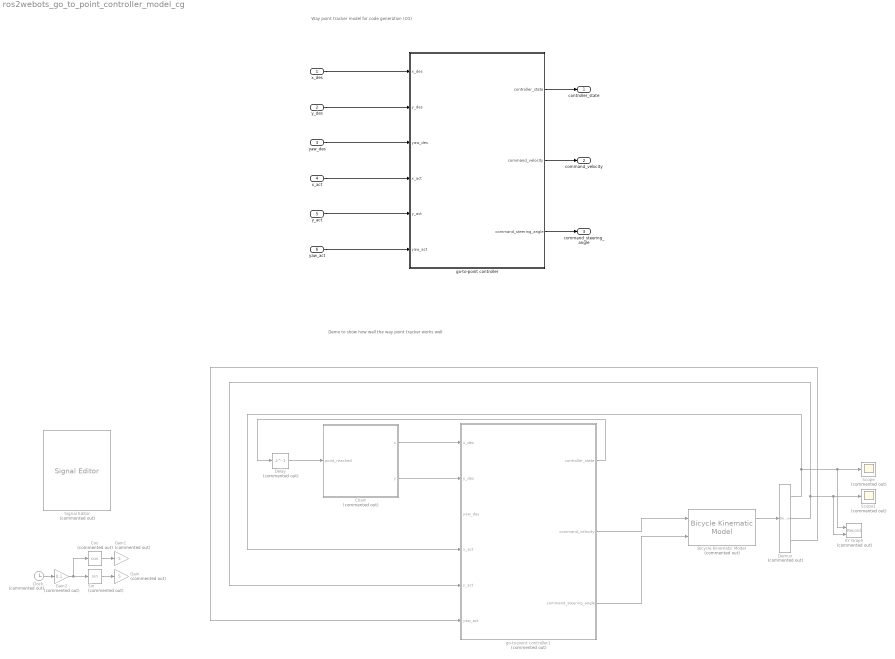
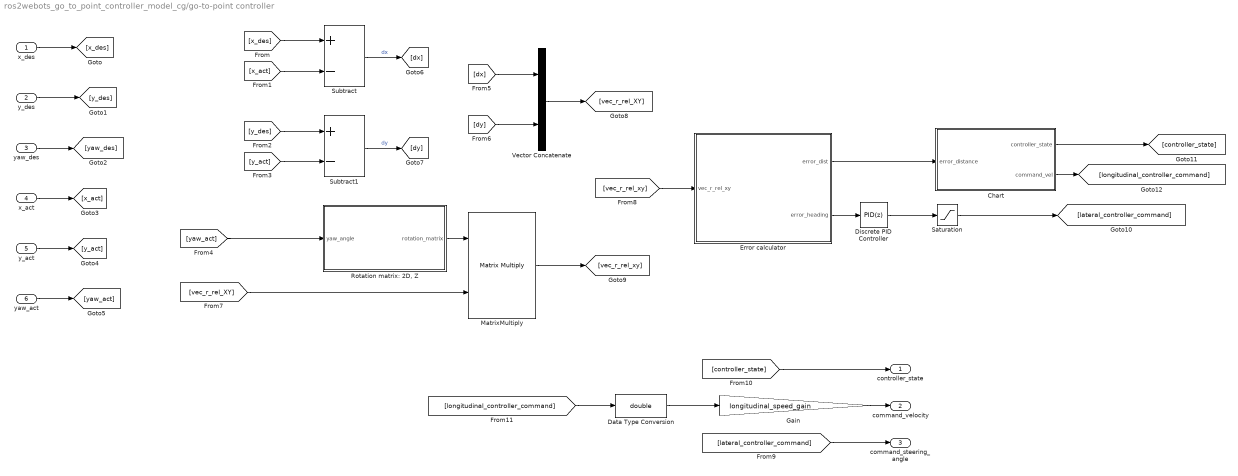
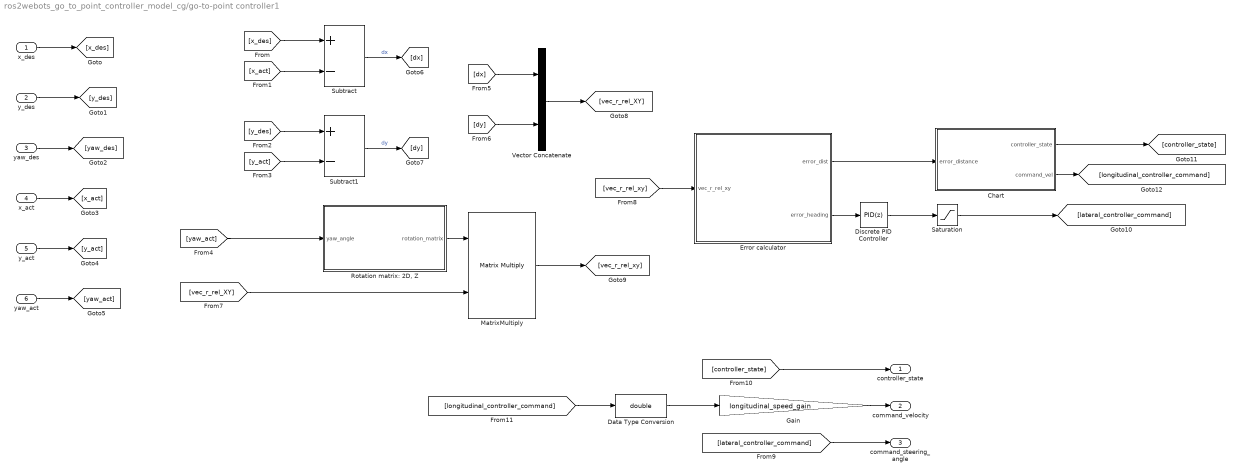
== stateflow chart ros2webots_go_to_point_controller_model_cg/go-to-point controller1/Chart ==
  state controller_off
    controller_state = 0;
    command_vel = 0;
  state controller_on
    controller_state = 1;
    command_vel = 1;
  (default) -> controller_off
  controller_off -> controller_on : [error_distance >=... param_error_distance]
  controller_on -> controller_off : [error_distance <... 1.05*param_error_distance]
  data: controller_state output uint8; error_distance input; param_error_distance constant double =0.20; command_vel output uint8

== matlab function ros2webots_go_to_point_controller_model_cg/go-to-point controller1/Error calculator ==
function [error_dist, error_heading] = tracking_error(vec_r_rel_xy)

error_dist = sqrt(vec_r_rel_xy(1)^2 + vec_r_rel_xy(2)^2);
error_heading = atan2(vec_r_rel_xy(2), vec_r_rel_xy(1)); % <0 --> turns left, >0 --> turns right

== matlab function ros2webots_go_to_point_controller_model_cg/go-to-point controller1/Rotation matrix: 2D, Z ==
function rotation_matrix = rotate_2d_around_Z(yaw_angle)

r_11 = cos(yaw_angle);
r_12 = sin(yaw_angle);
r_21 = -sin(yaw_angle);
r_22 = cos(yaw_angle);

rotation_matrix = [r_11, r_12; r_21, r_22];

== stateflow chart ros2webots_go_to_point_controller_model_cg/Chart ==
  state p0
    x=5;
    y = 0;
  state p1
    x=5;
    y = 3;
  state p2
    x=-5;
    y = 3;
  state p3
    x=-5;
    y = 0;
  state p4
    x=0;
    y = 0;
  (default) -> p0
  p0 -> p1 : [point_reached==0]
  p1 -> p2 : [point_reached==0]
  p2 -> p3 : [point_reached==0]
  p3 -> p4 : [point_reached==0]
  data: x output; y output; point_reached input

== stateflow chart ros2webots_go_to_point_controller_model_cg/go-to-point controller/Chart ==
  state controller_off
    controller_state = 0;
    command_vel = 0;
  state controller_on
    controller_state = 1;
    command_vel = 1;
  (default) -> controller_off
  controller_off -> controller_on : [error_distance >=... param_error_distance]
  controller_on -> controller_off : [error_distance <... 1.05*param_error_distance]
  data: controller_state output uint8; error_distance input; param_error_distance constant double =0.20; command_vel output uint8

== matlab function ros2webots_go_to_point_controller_model_cg/go-to-point controller/Error calculator ==
function [error_dist, error_heading] = tracking_error(vec_r_rel_xy)

error_dist = sqrt(vec_r_rel_xy(1)^2 + vec_r_rel_xy(2)^2);
error_heading = atan2(vec_r_rel_xy(2), vec_r_rel_xy(1)); % <0 --> turns left, >0 --> turns right

== matlab function ros2webots_go_to_point_controller_model_cg/go-to-point controller/Rotation matrix: 2D, Z ==
function rotation_matrix = rotate_2d_around_Z(yaw_angle)

r_11 = cos(yaw_angle);
r_12 = sin(yaw_angle);
r_21 = -sin(yaw_angle);
r_22 = cos(yaw_angle);

rotation_matrix = [r_11, r_12; r_21, r_22];

//
// File: ros2webots_go_to_point_controller_model_cg.cpp
//
// Code generated for Simulink model 'ros2webots_go_to_point_controller_model_cg'.
//
// Model version                  : 1.347
// Simulink Coder version         : 9.9 (R2023a) 19-Nov-2022
// C/C++ source code generated on : Sat Mar  2 16:57:53 2024
//
// Target selection: ert.tlc
// Embedded hardware selection: Intel->x86-64 (Windows64)
// Code generation objectives: Unspecified
// Validation result: Not run
//
#include "ros2webots_go_to_point_controller_model_cg.h"
#include "rtwtypes.h"
#include <cmath>
#include "ros2webots_go_to_point_controller_model_cg_private.h"
#include "rt_defines.h"

extern "C"
{

#include "rt_nonfinite.h"

}

// Named constants for Chart: '<S1>/Chart'
const uint8_T ros2webots_go_IN_controller_off{ 1U };

const uint8_T ros2webots_go__IN_controller_on{ 2U };

const real_T ros2webots_param_error_distance{ 0.05 };

// Exported data definition

// Const memory section
// Definition for custom storage class: Const
const real_T laterl_PID_kd{ 0.0 };    // Referenced by: '<S31>/Derivative Gain'

// Lateral PID controller gain: Kd
const real_T laterl_PID_ki{ 0.3 };     // Referenced by: '<S34>/Integral Gain'

// Lateral PID controller gain: Ki
const real_T laterl_PID_kp{ 1. };  // Referenced by: '<S42>/Proportional Gain'

// Lateral PID controller gain: Kp
const real_T longitudinal_speed_gain{ 0.1 };// Referenced by: '<S1>/Gain'

// The gain thay manipulate main state machine velocity command
real_T rt_atan2d_snf(real_T u0, real_T u1)
{
  real_T y;
  if (std::isnan(u0) || std::isnan(u1)) {
    y = (rtNaN);
  } else if (std::isinf(u0) && std::isinf(u1)) {
    int32_T tmp;
    int32_T tmp_0;
    if (u0 > 0.0) {
      tmp = 1;
    } else {
      tmp = -1;
    }

    if (u1 > 0.0) {
      tmp_0 = 1;
    } else {
      tmp_0 = -1;
    }

    y = std::atan2(static_cast<real_T>(tmp), static_cast<real_T>(tmp_0));
  } else if (u1 == 0.0) {
    if (u0 > 0.0) {
      y = RT_PI / 2.0;
    } else if (u0 < 0.0) {
      y = -(RT_PI / 2.0);
    } else {
      y = 0.0;
    }
  } else {
    y = std::atan2(u0, u1);
  }

  return y;
}

// Model step function
void ros2webots_go_to_point_controller_model_cg::step()
{
  real_T rtb_MatrixMultiply_tmp;
  real_T rtb_MatrixMultiply_tmp_0;
  real_T rtb_VectorConcatenate_idx_0;
  real_T rtb_VectorConcatenate_idx_1;
  real_T rtb_error_heading;
  uint8_T rtb_command_vel;

  // Sum: '<S1>/Subtract' incorporates:
  //   Inport: '<Root>/x_act'
  //   Inport: '<Root>/x_des'

  rtb_VectorConcatenate_idx_0 = ros2webots_go_to_point_contro_U.x_des -
    ros2webots_go_to_point_contro_U.x_act;

  // Sum: '<S1>/Subtract1' incorporates:
  //   Inport: '<Root>/y_act'
  //   Inport: '<Root>/y_des'

  rtb_VectorConcatenate_idx_1 = ros2webots_go_to_point_contro_U.y_des -
    ros2webots_go_to_point_contro_U.y_act;

  // MATLAB Function: '<S1>/Rotation matrix: 2D, Z' incorporates:
  //   Inport: '<Root>/yaw_act'

  rtb_MatrixMultiply_tmp = std::sin(ros2webots_go_to_point_contro_U.yaw_act);
  rtb_MatrixMultiply_tmp_0 = std::cos(ros2webots_go_to_point_contro_U.yaw_act);

  // Product: '<S1>/MatrixMultiply' incorporates:
  //   MATLAB Function: '<S1>/Rotation matrix: 2D, Z'

  rtb_error_heading = rtb_MatrixMultiply_tmp_0 * rtb_VectorConcatenate_idx_0 +
    rtb_MatrixMultiply_tmp * rtb_VectorConcatenate_idx_1;
  rtb_VectorConcatenate_idx_1 = -rtb_MatrixMultiply_tmp *
    rtb_VectorConcatenate_idx_0 + rtb_MatrixMultiply_tmp_0 *
    rtb_VectorConcatenate_idx_1;

  // MATLAB Function: '<S1>/Error calculator' incorporates:
  //   Product: '<S1>/MatrixMultiply'

  rtb_VectorConcatenate_idx_0 = std::sqrt(rtb_error_heading * rtb_error_heading
    + rtb_VectorConcatenate_idx_1 * rtb_VectorConcatenate_idx_1);
  rtb_error_heading = rt_atan2d_snf(rtb_VectorConcatenate_idx_1,
    rtb_error_heading);

  // Chart: '<S1>/Chart'
  if (ros2webots_go_to_point_contr_DW.is_active_c8_ros2webots_go_to_p == 0U) {
    ros2webots_go_to_point_contr_DW.is_active_c8_ros2webots_go_to_p = 1U;
    ros2webots_go_to_point_contr_DW.is_c8_ros2webots_go_to_point_co =
      ros2webots_go_IN_controller_off;

    // Outport: '<Root>/controller_state'
    ros2webots_go_to_point_contro_Y.controller_state = 0U;
    rtb_command_vel = 0U;
  } else if (ros2webots_go_to_point_contr_DW.is_c8_ros2webots_go_to_point_co ==
             ros2webots_go_IN_controller_off) {
    if (rtb_VectorConcatenate_idx_0 >= ros2webots_param_error_distance) {
      ros2webots_go_to_point_contr_DW.is_c8_ros2webots_go_to_point_co =
        ros2webots_go__IN_controller_on;

      // Outport: '<Root>/controller_state'
      ros2webots_go_to_point_contro_Y.controller_state = 1U;
      rtb_command_vel = 1U;
    } else {
      // Outport: '<Root>/controller_state'
      ros2webots_go_to_point_contro_Y.controller_state = 0U;
      rtb_command_vel = 0U;
    }

    // case IN_controller_on:
  } else if (rtb_VectorConcatenate_idx_0 < 0.21000000000000002) {
    ros2webots_go_to_point_contr_DW.is_c8_ros2webots_go_to_point_co =
      ros2webots_go_IN_controller_off;

    // Outport: '<Root>/controller_state'
    ros2webots_go_to_point_contro_Y.controller_state = 0U;
    rtb_command_vel = 0U;
  } else {
    // Outport: '<Root>/controller_state'
    ros2webots_go_to_point_contro_Y.controller_state = 1U;
    rtb_command_vel = 1U;
  }

  // End of Chart: '<S1>/Chart'

  // Outport: '<Root>/command_velocity' incorporates:
  //   DataTypeConversion: '<S1>/Data Type Conversion'
  //   Gain: '<S1>/Gain'

  ros2webots_go_to_point_contro_Y.command_velocity = longitudinal_speed_gain *
    static_cast<real_T>(rtb_command_vel);

  // Gain: '<S40>/Filter Coefficient' incorporates:
  //   DiscreteIntegrator: '<S32>/Filter'
  //   Gain: '<S31>/Derivative Gain'
  //   Sum: '<S32>/SumD'

  rtb_VectorConcatenate_idx_0 = (laterl_PID_kd * rtb_error_heading -
    ros2webots_go_to_point_contr_DW.Filter_DSTATE) * 100.0;

  // Sum: '<S46>/Sum' incorporates:
  //   DiscreteIntegrator: '<S37>/Integrator'
  //   Gain: '<S42>/Proportional Gain'

  ros2webots_go_to_point_contro_Y.command_steering_angle = (laterl_PID_kp *
    rtb_error_heading + ros2webots_go_to_point_contr_DW.Integrator_DSTATE) +
    rtb_VectorConcatenate_idx_0;

  // Saturate: '<S1>/Saturation'
  if (ros2webots_go_to_point_contro_Y.command_steering_angle >
      (2*0.78539816339744828)) {
    // Sum: '<S46>/Sum' incorporates:
    //   Outport: '<Root>/command_steering_angle'

    ros2webots_go_to_point_contro_Y.command_steering_angle = 2*0.78539816339744828;
  } else if (ros2webots_go_to_point_contro_Y.command_steering_angle <
             (2*-0.78539816339744828)) {
    // Sum: '<S46>/Sum' incorporates:
    //   Outport: '<Root>/command_steering_angle'

    ros2webots_go_to_point_contro_Y.command_steering_angle =
      2*-0.78539816339744828;
  }

  // End of Saturate: '<S1>/Saturation'

  // Update for DiscreteIntegrator: '<S37>/Integrator' incorporates:
  //   Gain: '<S34>/Integral Gain'

  ros2webots_go_to_point_contr_DW.Integrator_DSTATE += laterl_PID_ki *
    rtb_error_heading * 0.05;

  // Update for DiscreteIntegrator: '<S32>/Filter'
  ros2webots_go_to_point_contr_DW.Filter_DSTATE += 0.05 *
    rtb_VectorConcatenate_idx_0;
}
